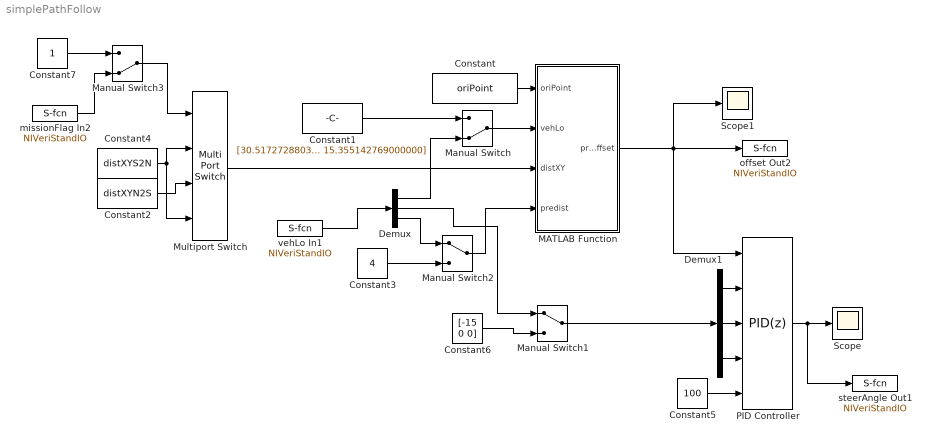
== matlab function simplePathFollow/MATLAB Function ==
function preOffset = fcn(oriPoint, vehLo, distXY,predist)
% distXY
vehLo = vehLo';
% oriPoint
preOffset = caPreOffset(oriPoint, vehLo, distXY,predist);

#define NI_VERISTAND_MAINMODELFILE

/*
   c
 *
 * Code generation for model "simplePathFollow".
 *
 * Model version              : 1.40
 * Simulink Coder version : 9.0 (R2018b) 24-May-2018
 * C source code generated on : Tue Oct 20 03:39:33 2020
 *
 * Target selection: VeriStand.tlc
 * Note: GRT includes extra infrastructure and instrumentation for prototyping
 * Embedded hardware selection: Intel->x86/Pentium
 * Code generation objectives: Unspecified
 * Validation result: Not run
 */
#include "simplePathFollow.h"
#include "simplePathFollow_private.h"

/* Block signals (default storage) */
B_simplePathFollow_T simplePathFollow_B;

/* Block states (default storage) */
DW_simplePathFollow_T simplePathFollow_DW;

/* Real-time model */
RT_MODEL_simplePathFollow_T simplePathFollow_M_;
RT_MODEL_simplePathFollow_T *const simplePathFollow_M = &simplePathFollow_M_;

/* Forward declaration for local functions */
static void simplePathFollow_latlon2global(const real_T oriPoint[2], const
  real_T point[3], real_T *distX, real_T *distY);
static void simplePathFollow_global2vehXY(real_T globalX, real_T globalY, real_T
  vehX, real_T vehY, real_T vehYaw, real_T vehXY[3]);
static void simplePathFollow_pwchcore(const real_T x[235], const real_T y[235],
  const real_T s[235], const real_T dx[234], const real_T divdif[234], real_T
  pp_breaks[235], real_T pp_coefs[936]);
static void simplePathFollow_spline(const real_T x[235], const real_T y[235],
  real_T output_breaks[235], real_T output_coefs[936]);
static real_T simplePathFollow_ppval(const real_T pp_breaks[235], const real_T
  pp_coefs[936], real_T x);

/* Function for MATLAB Function: '<Root>/MATLAB Function' */
static void simplePathFollow_latlon2global(const real_T oriPoint[2], const
  real_T point[3], real_T *distX, real_T *distY)
{
  *distX = cos(oriPoint[0] * 3.1415926535897931 / 180.0) * 6.378137E+6 * (point
    [1] - oriPoint[1]) * 3.1415926535897931 / 180.0;
  *distY = (point[0] - oriPoint[0]) * 6.356725E+6 * 3.1415926535897931 / 180.0;
}

/* Function for MATLAB Function: '<Root>/MATLAB Function' */
static void simplePathFollow_global2vehXY(real_T globalX, real_T globalY, real_T
  vehX, real_T vehY, real_T vehYaw, real_T vehXY[3])
{
  real_T alpha;
  real_T A[4];
  real_T B[2];
  int32_T r1;
  int32_T r2;
  real_T A_tmp;
  alpha = vehYaw * 3.1415926535897931 / 180.0;
  A_tmp = sin(alpha);
  A[0] = A_tmp;
  alpha = cos(alpha);
  A[2] = alpha;
  A[1] = alpha;
  A[3] = -A_tmp;
  B[0] = globalX - vehX;
  B[1] = globalY - vehY;
  if (fabs(alpha) > fabs(A_tmp)) {
    r1 = 1;
    r2 = 0;
  } else {
    r1 = 0;
    r2 = 1;
  }

  alpha = A[r2] / A[r1];
  A_tmp = A[2 + r1];
  alpha = (B[r2] - B[r1] * alpha) / (A[2 + r2] - A_tmp * alpha);
  vehXY[0] = (B[r1] - A_tmp * alpha) / A[r1];
  vehXY[1] = -alpha;
  vehXY[2] = -0.0;
}

/* Function for MATLAB Function: '<Root>/MATLAB Function' */
static void simplePathFollow_pwchcore(const real_T x[235], const real_T y[235],
  const real_T s[235], const real_T dx[234], const real_T divdif[234], real_T
  pp_breaks[235], real_T pp_coefs[936])
{
  real_T dzzdx;
  real_T dzdxdx;
  int32_T j;
  memcpy(&pp_breaks[0], &x[0], 235U * sizeof(real_T));
  for (j = 0; j < 234; j++) {
    dzzdx = (divdif[j] - s[j]) / dx[j];
    dzdxdx = (s[j + 1] - divdif[j]) / dx[j];
    pp_coefs[j] = (dzdxdx - dzzdx) / dx[j];
    pp_coefs[j + 234] = 2.0 * dzzdx - dzdxdx;
    pp_coefs[j + 468] = s[j];
    pp_coefs[j + 702] = y[j];
  }
}

/* Function for MATLAB Function: '<Root>/MATLAB Function' */
static void simplePathFollow_spline(const real_T x[235], const real_T y[235],
  real_T output_breaks[235], real_T output_coefs[936])
{
  real_T s[235];
  real_T dvdf[234];
  real_T dx[234];
  real_T d31;
  real_T dnnm2;
  real_T md[235];
  real_T r;
  int32_T k;
  for (k = 0; k < 234; k++) {
    d31 = x[k + 1] - x[k];
    dvdf[k] = (y[k + 1] - y[k]) / d31;
    dx[k] = d31;
  }

  d31 = x[2] - x[0];
  dnnm2 = x[234] - x[232];
  s[0] = ((2.0 * d31 + dx[0]) * dx[1] * dvdf[0] + dx[0] * dx[0] * dvdf[1]) / d31;
  s[234] = ((2.0 * dnnm2 + dx[233]) * dx[232] * dvdf[233] + dx[233] * dx[233] *
            dvdf[232]) / dnnm2;
  md[0] = dx[1];
  md[234] = dx[232];
  for (k = 0; k < 233; k++) {
    r = dx[k + 1];
    s[k + 1] = (r * dvdf[k] + dvdf[k + 1] * dx[k]) * 3.0;
    md[k + 1] = (r + dx[k]) * 2.0;
  }

  r = dx[1] / md[0];
  md[1] -= r * d31;
  s[1] -= r * s[0];
  for (k = 0; k < 232; k++) {
    r = dx[k + 2] / md[k + 1];
    md[k + 2] -= r * dx[k];
    s[k + 2] -= s[k + 1] * r;
  }

  r = dnnm2 / md[233];
  md[234] -= r * dx[232];
  s[234] -= r * s[233];
  s[234] /= md[234];
  for (k = 232; k >= 0; k--) {
    s[k + 1] = (s[k + 1] - s[k + 2] * dx[k]) / md[k + 1];
  }

  s[0] = (s[0] - d31 * s[1]) / md[0];
  simplePathFollow_pwchcore(x, y, s, dx, dvdf, output_breaks, output_coefs);
}

/* Function for MATLAB Function: '<Root>/MATLAB Function' */
static real_T simplePathFollow_ppval(const real_T pp_breaks[235], const real_T
  pp_coefs[936], real_T x)
{
  real_T v;
  real_T xloc;
  int32_T low_i;
  int32_T low_ip1;
  int32_T high_i;
  int32_T mid_i;
  if (rtIsNaN(x)) {
    v = x;
  } else {
    low_i = 0;
    low_ip1 = 2;
    high_i = 235;
    while (high_i > low_ip1) {
      mid_i = ((low_i + high_i) + 1) >> 1;
      if (x >= pp_breaks[mid_i - 1]) {
        low_i = mid_i - 1;
        low_ip1 = mid_i + 1;
      } else {
        high_i = mid_i;
      }
    }

    xloc = x - pp_breaks[low_i];
    v = ((xloc * pp_coefs[low_i] + pp_coefs[low_i + 234]) * xloc +
         pp_coefs[low_i + 468]) * xloc + pp_coefs[low_i + 702];
  }

  return v;
}

/* Model output function */
static void simplePathFollow_output(void)
{
  int32_T i;
  real_T rtb_ManualSwitch[3];
  real_T assign_temp_breaks[235];
  real_T tmp[3];
  real_T vehGlobal_idx_0;
  real_T vehGlobal_idx_1;
  const real_T *rtb_MultiportSwitch_0;

  /* ManualSwitch: '<Root>/Manual Switch' incorporates:
   *  Constant: '<Root>/Constant1'
   */
  if (simplePathFollow_P.ManualSwitch_CurrentSetting == 1) {
    rtb_ManualSwitch[0] = simplePathFollow_P.Constant1_Value[0];
    rtb_ManualSwitch[1] = simplePathFollow_P.Constant1_Value[1];
    rtb_ManualSwitch[2] = simplePathFollow_P.Constant1_Value[2];
  } else {
    rtb_ManualSwitch[0] = simplePathFollow_B.vehLoIn1[0];
    rtb_ManualSwitch[1] = simplePathFollow_B.vehLoIn1[1];
    rtb_ManualSwitch[2] = simplePathFollow_B.vehLoIn1[2];
  }

  /* End of ManualSwitch: '<Root>/Manual Switch' */
  /* ManualSwitch: '<Root>/Manual Switch3' incorporates:
   *  Constant: '<Root>/Constant7'
   */
  if (simplePathFollow_P.ManualSwitch3_CurrentSetting == 1) {
    vehGlobal_idx_0 = simplePathFollow_P.Constant7_Value;
  } else {
    vehGlobal_idx_0 = simplePathFollow_B.missionFlagIn2;
  }

  /* End of ManualSwitch: '<Root>/Manual Switch3' */

  /* MultiPortSwitch: '<Root>/Multiport Switch' incorporates:
   *  Constant: '<Root>/Constant2'
   *  Constant: '<Root>/Constant4'
   */
  switch ((int32_T)vehGlobal_idx_0) {
   case 1:
    rtb_MultiportSwitch_0 = &simplePathFollow_P.distXYS2N[0];
    break;

   case 2:
    rtb_MultiportSwitch_0 = &simplePathFollow_P.distXYN2S[0];
    break;

   default:
    rtb_MultiportSwitch_0 = &simplePathFollow_P.distXYS2N[0];
    break;
  }

  /* End of MultiPortSwitch: '<Root>/Multiport Switch' */

  /* MATLAB Function: '<Root>/MATLAB Function' incorporates:
   *  Constant: '<Root>/Constant'
   */
  simplePathFollow_latlon2global(simplePathFollow_P.oriPoint, rtb_ManualSwitch,
    &vehGlobal_idx_0, &vehGlobal_idx_1);
  for (i = 0; i < 235; i++) {
    simplePathFollow_global2vehXY(rtb_MultiportSwitch_0[i],
      rtb_MultiportSwitch_0[235 + i], vehGlobal_idx_0, vehGlobal_idx_1,
      rtb_ManualSwitch[2], tmp);
    simplePathFollow_B.vehXY[i] = tmp[0];
    simplePathFollow_B.vehXY[i + 235] = tmp[1];
    simplePathFollow_B.vehXY[i + 470] = tmp[2];
  }

  simplePathFollow_spline(&simplePathFollow_B.vehXY[0],
    &simplePathFollow_B.vehXY[235], assign_temp_breaks,
    simplePathFollow_B.assign_temp_coefs);

  /* ManualSwitch: '<Root>/Manual Switch2' incorporates:
   *  Constant: '<Root>/Constant3'
   */
  if (simplePathFollow_P.ManualSwitch2_CurrentSetting == 1) {
    vehGlobal_idx_0 = simplePathFollow_B.vehLoIn1[6];
  } else {
    vehGlobal_idx_0 = simplePathFollow_P.Constant3_Value;
  }

  /* End of ManualSwitch: '<Root>/Manual Switch2' */

  /* MATLAB Function: '<Root>/MATLAB Function' */
  simplePathFollow_B.preOffset = simplePathFollow_ppval(assign_temp_breaks,
    simplePathFollow_B.assign_temp_coefs, vehGlobal_idx_0);

  /* ManualSwitch: '<Root>/Manual Switch1' incorporates:
   *  Constant: '<Root>/Constant6'
   */
  if (simplePathFollow_P.ManualSwitch1_CurrentSetting == 1) {
    rtb_ManualSwitch[0] = simplePathFollow_B.vehLoIn1[3];
    rtb_ManualSwitch[1] = simplePathFollow_B.vehLoIn1[4];
    rtb_ManualSwitch[2] = simplePathFollow_B.vehLoIn1[5];
  } else {
    rtb_ManualSwitch[0] = simplePathFollow_P.Constant6_Value[0];
    rtb_ManualSwitch[1] = simplePathFollow_P.Constant6_Value[1];
    rtb_ManualSwitch[2] = simplePathFollow_P.Constant6_Value[2];
  }

  /* End of ManualSwitch: '<Root>/Manual Switch1' */

  /* Product: '<S66>/NProd Out' incorporates:
   *  Constant: '<Root>/Constant5'
   *  DiscreteIntegrator: '<S39>/Filter'
   *  Product: '<S33>/DProd Out'
   *  Sum: '<S39>/SumD'
   */
  simplePathFollow_B.NProdOut = (simplePathFollow_B.preOffset *
    rtb_ManualSwitch[2] - simplePathFollow_DW.Filter_DSTATE) *
    simplePathFollow_P.Constant5_Value;

  /* Sum: '<S87>/Sum' incorporates:
   *  DiscreteIntegrator: '<S57>/Integrator'
   *  Product: '<S73>/PProd Out'
   */
  vehGlobal_idx_0 = (simplePathFollow_B.preOffset * rtb_ManualSwitch[0] +
                     simplePathFollow_DW.Integrator_DSTATE) +
    simplePathFollow_B.NProdOut;

  /* Saturate: '<S78>/Saturation' */
  if (vehGlobal_idx_0 > simplePathFollow_P.PIDController_UpperSaturationLi) {
    simplePathFollow_B.Saturation =
      simplePathFollow_P.PIDController_UpperSaturationLi;
  } else if (vehGlobal_idx_0 <
             simplePathFollow_P.PIDController_LowerSaturationLi) {
    simplePathFollow_B.Saturation =
      simplePathFollow_P.PIDController_LowerSaturationLi;
  } else {
    simplePathFollow_B.Saturation = vehGlobal_idx_0;
  }

  /* End of Saturate: '<S78>/Saturation' */
  /* Product: '<S46>/IProd Out' */
  simplePathFollow_B.IProdOut = simplePathFollow_B.preOffset * rtb_ManualSwitch
    [1];
}

/* Model update function */
static void simplePathFollow_update(void)
{
  /* Update for DiscreteIntegrator: '<S57>/Integrator' */
  simplePathFollow_DW.Integrator_DSTATE += simplePathFollow_P.Integrator_gainval
    * simplePathFollow_B.IProdOut;

  /* Update for DiscreteIntegrator: '<S39>/Filter' */
  simplePathFollow_DW.Filter_DSTATE += simplePathFollow_P.Filter_gainval *
    simplePathFollow_B.NProdOut;

  /* Update absolute time for base rate */
  /* The "clockTick0" counts the number of times the code of this task has
   * been executed. The absolute time is the multiplication of "clockTick0"
   * and "Timing.stepSize0". Size of "clockTick0" ensures timer will not
   * overflow during the application lifespan selected.
   * Timer of this task consists of two 32 bit unsigned integers.
   * The two integers represent the low bits Timing.clockTick0 and the high bits
   * Timing.clockTickH0. When the low bit overflows to 0, the high bits increment.
   */
  if (!(++simplePathFollow_M->Timing.clockTick0)) {
    ++simplePathFollow_M->Timing.clockTickH0;
  }

  simplePathFollow_M->Timing.t[0] = simplePathFollow_M->Timing.clockTick0 *
    simplePathFollow_M->Timing.stepSize0 +
    simplePathFollow_M->Timing.clockTickH0 *
    simplePathFollow_M->Timing.stepSize0 * 4294967296.0;
}
